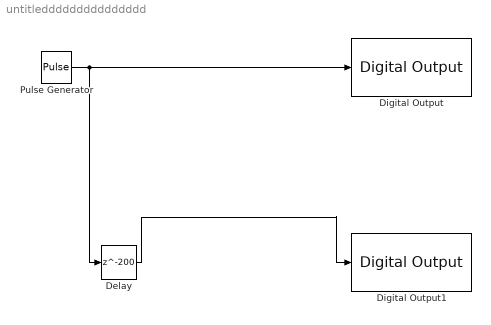
/*
 * File: untitleddddddddddddddd.c
 *
 * Code generated for Simulink model 'untitleddddddddddddddd'.
 *
 * Model version                  : 1.1
 * Simulink Coder version         : 9.8 (R2022b) 13-May-2022
 * C/C++ source code generated on : Sat Mar  9 00:28:24 2024
 *
 * Target selection: ert.tlc
 * Embedded hardware selection: Atmel->AVR
 * Code generation objectives: Unspecified
 * Validation result: Not run
 */

#include "untitleddddddddddddddd.h"
#include "rtwtypes.h"
#include "untitleddddddddddddddd_private.h"
#include <math.h>

/* Block states (default storage) */
DW_untitleddddddddddddddd_T untitleddddddddddddddd_DW;

/* Real-time model */
static RT_MODEL_untitleddddddddddddd_T untitleddddddddddddddd_M_;
RT_MODEL_untitleddddddddddddd_T *const untitleddddddddddddddd_M =
  &untitleddddddddddddddd_M_;
real_T rt_roundd_snf(real_T u)
{
  real_T y;
  if (fabs(u) < 4.503599627370496E+15) {
    if (u >= 0.5) {
      y = floor(u + 0.5);
    } else if (u > -0.5) {
      y = u * 0.0;
    } else {
      y = ceil(u - 0.5);
    }
  } else {
    y = u;
  }

  return y;
}

/* Model step function */
void untitleddddddddddddddd_step(void)
{
  real_T rtb_PulseGenerator;
  real_T tmp;
  int_T idxDelay;
  uint8_T tmp_0;

  /* MATLABSystem: '<Root>/Digital Output1' incorporates:
   *  Delay: '<Root>/Delay'
   */
  tmp = rt_roundd_snf(untitleddddddddddddddd_DW.Delay_DSTATE[0]);
  if (tmp < 256.0) {
    if (tmp >= 0.0) {
      tmp_0 = (uint8_T)tmp;
    } else {
      tmp_0 = 0U;
    }
  } else {
    tmp_0 = MAX_uint8_T;
  }

  writeDigitalPin(3, tmp_0);

  /* End of MATLABSystem: '<Root>/Digital Output1' */

  /* DiscretePulseGenerator: '<Root>/Pulse Generator' */
  rtb_PulseGenerator = (untitleddddddddddddddd_DW.clockTickCounter <
                        untitleddddddddddddddd_P.PulseGenerator_Duty) &&
    (untitleddddddddddddddd_DW.clockTickCounter >= 0L) ?
    untitleddddddddddddddd_P.PulseGenerator_Amp : 0.0;
  if (untitleddddddddddddddd_DW.clockTickCounter >=
      untitleddddddddddddddd_P.PulseGenerator_Period - 1.0) {
    untitleddddddddddddddd_DW.clockTickCounter = 0L;
  } else {
    untitleddddddddddddddd_DW.clockTickCounter++;
  }

  /* End of DiscretePulseGenerator: '<Root>/Pulse Generator' */

  /* MATLABSystem: '<Root>/Digital Output' */
  tmp = rt_roundd_snf(rtb_PulseGenerator);
  if (tmp < 256.0) {
    if (tmp >= 0.0) {
      tmp_0 = (uint8_T)tmp;
    } else {
      tmp_0 = 0U;
    }
  } else {
    tmp_0 = MAX_uint8_T;
  }

  writeDigitalPin(2, tmp_0);

  /* End of MATLABSystem: '<Root>/Digital Output' */

  /* Update for Delay: '<Root>/Delay' */
  for (idxDelay = 0; idxDelay < 199; idxDelay++) {
    untitleddddddddddddddd_DW.Delay_DSTATE[idxDelay] =
      untitleddddddddddddddd_DW.Delay_DSTATE[idxDelay + 1];
  }

  untitleddddddddddddddd_DW.Delay_DSTATE[199] = rtb_PulseGenerator;

  /* End of Update for Delay: '<Root>/Delay' */
  {                                    /* Sample time: [0.001s, 0.0s] */
  }

  /* Update absolute time for base rate */
  /* The "clockTick0" counts the number of times the code of this task has
   * been executed. The absolute time is the multiplication of "clockTick0"
   * and "Timing.stepSize0". Size of "clockTick0" ensures timer will not
   * overflow during the application lifespan selected.
   */
  untitleddddddddddddddd_M->Timing.taskTime0 =
    ((time_T)(++untitleddddddddddddddd_M->Timing.clockTick0)) *
    untitleddddddddddddddd_M->Timing.stepSize0;
}
